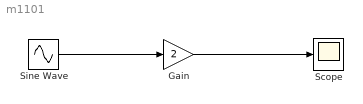
/*
 * m1101.c
 * 
 * Real-Time Workshop code generation for Simulink model "m1101.mdl".
 *
 * Model Version              : 1.1
 * Real-Time Workshop version : 6.1  (R14SP1)  05-Sep-2004
 * C source code generated on : Tue Apr 05 08:54:07 2005
 */

#include "m1101.h"
#include "m1101_private.h"

#include <stdio.h>
#include "m1101_dt.h"

/* Block signals (auto storage) */
BlockIO_m1101 m1101_B;

/* Block states (auto storage) */
D_Work_m1101 m1101_DWork;

/* Real-time model */
rtModel_m1101 m1101_M_;
rtModel_m1101 *m1101_M = &m1101_M_;

/* Model output function */
void m1101_output(int_T tid)
{

  /* local block i/o variables */

  real_T rtb_SineWave;

  /* Sin: '<Root>/Sine Wave' */
  rtb_SineWave = m1101_P.SineWave_Amp *
    sin(m1101_P.SineWave_Freq * m1101_M->Timing.t[0] + m1101_P.SineWave_Phase) +
    m1101_P.SineWave_Bias;

  /* Gain: '<Root>/Gain' */
  m1101_B.Gain = rtb_SineWave * m1101_P.Gain_Gain;
}

/* Model update function */
void m1101_update(int_T tid)
{

  /* Update absolute time for base rate */

  if(!(++m1101_M->Timing.clockTick0)) ++m1101_M->Timing.clockTickH0;
  m1101_M->Timing.t[0] = m1101_M->Timing.clockTick0 * m1101_M->Timing.stepSize0
    + m1101_M->Timing.clockTickH0 * m1101_M->Timing.stepSize0 * 4294967296.0;

  {
    /* Update absolute timer for sample time: [0.01s, 0.0s] */

    if(!(++m1101_M->Timing.clockTick1)) ++m1101_M->Timing.clockTickH1;
    m1101_M->Timing.t[1] = m1101_M->Timing.clockTick1 *
      m1101_M->Timing.stepSize1 + m1101_M->Timing.clockTickH1 *
      m1101_M->Timing.stepSize1 * 4294967296.0;
  }
}
